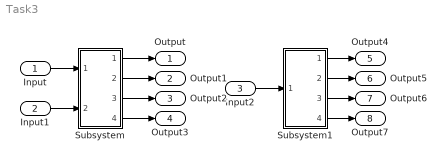
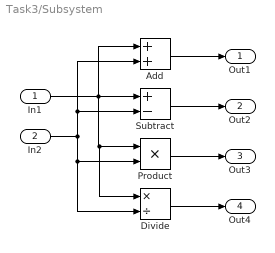
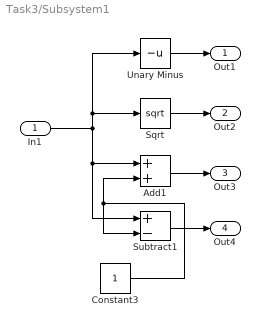
/*
 * File: Task3.c
 *
 * Code generated for Simulink model 'Task3'.
 *
 * Model version                  : 1.4
 * Simulink Coder version         : 9.5 (R2021a) 14-Nov-2020
 * C/C++ source code generated on : Mon Jan 29 14:38:54 2024
 *
 * Target selection: ert.tlc
 * Embedded hardware selection: Intel->x86-64 (Windows64)
 * Code generation objectives: Unspecified
 * Validation result: Not run
 */

#include "Task3.h"
#include "Task3_private.h"

/* External inputs (root inport signals with default storage) */
ExtU_Task3_T Task3_U;

/* External outputs (root outports fed by signals with default storage) */
ExtY_Task3_T Task3_Y;

/* Real-time model */
static RT_MODEL_Task3_T Task3_M_;
RT_MODEL_Task3_T *const Task3_M = &Task3_M_;

/* Model step function */
void Task3_step(void)
{
  /* Outport: '<Root>/Output' incorporates:
   *  Inport: '<Root>/Input'
   *  Inport: '<Root>/Input1'
   *  Sum: '<S1>/Add'
   */
  Task3_Y.Output = Task3_U.Input + Task3_U.Input1;

  /* Outport: '<Root>/Output1' incorporates:
   *  Inport: '<Root>/Input'
   *  Inport: '<Root>/Input1'
   *  Sum: '<S1>/Subtract'
   */
  Task3_Y.Output1 = Task3_U.Input - Task3_U.Input1;

  /* Outport: '<Root>/Output2' incorporates:
   *  Inport: '<Root>/Input'
   *  Inport: '<Root>/Input1'
   *  Product: '<S1>/Product'
   */
  Task3_Y.Output2 = Task3_U.Input * Task3_U.Input1;

  /* Outport: '<Root>/Output3' incorporates:
   *  Inport: '<Root>/Input'
   *  Inport: '<Root>/Input1'
   *  Product: '<S1>/Divide'
   */
  Task3_Y.Output3 = Task3_U.Input / Task3_U.Input1;

  /* Outport: '<Root>/Output4' incorporates:
   *  Inport: '<Root>/Input2'
   *  UnaryMinus: '<S2>/Unary Minus'
   */
  Task3_Y.Output4 = -Task3_U.Input2;

  /* Outport: '<Root>/Output5' incorporates:
   *  Inport: '<Root>/Input2'
   *  Sqrt: '<S2>/Sqrt'
   */
  Task3_Y.Output5 = sqrt(Task3_U.Input2);

  /* Outport: '<Root>/Output6' incorporates:
   *  Constant: '<S2>/Constant3'
   *  Inport: '<Root>/Input2'
   *  Sum: '<S2>/Add1'
   */
  Task3_Y.Output6 = Task3_U.Input2 + 1.0;

  /* Outport: '<Root>/Output7' incorporates:
   *  Constant: '<S2>/Constant3'
   *  Inport: '<Root>/Input2'
   *  Sum: '<S2>/Subtract1'
   */
  Task3_Y.Output7 = Task3_U.Input2 - 1.0;
}
